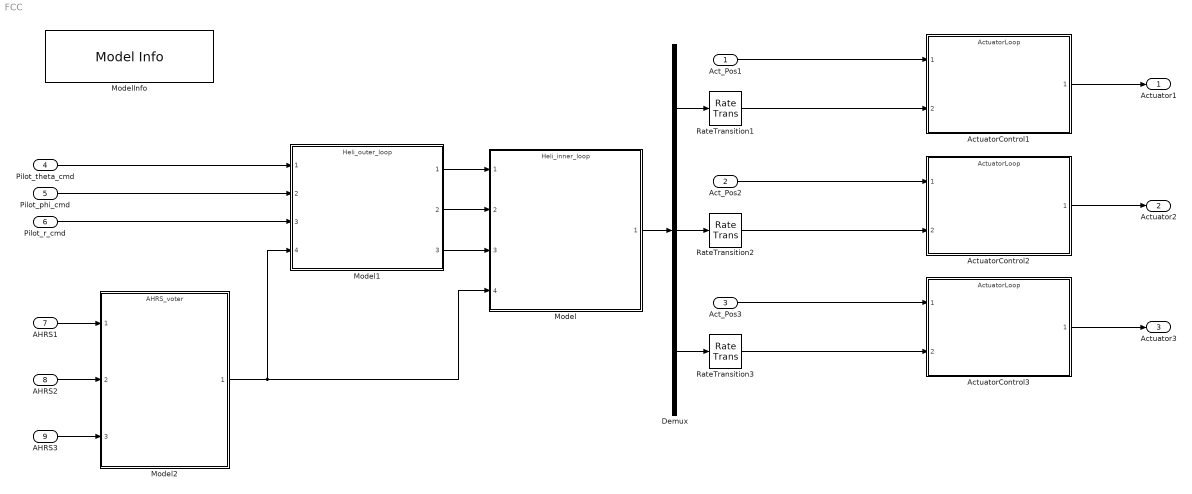
/*
 * File: FCC.c
 *
 * Code generated for Simulink model 'FCC'.
 *
 * Model version                  : 1.71
 * Simulink Coder version         : 9.2 (R2019b) 18-Jul-2019
 * C/C++ source code generated on : Wed May 13 13:32:12 2020
 *
 * Target selection: ert.tlc
 * Embedded hardware selection: Intel->x86-32 (Windows32)
 * Code generation objectives: Unspecified
 * Validation result: Not run
 */

#include "FCC.h"

/* Block signals (default storage) */
B_FCC_T FCC_B;

/* Block states (default storage) */
DW_FCC_T FCC_DW;

/* External inputs (root inport signals with default storage) */
ExtU_FCC_T FCC_U;

/* External outputs (root outports fed by signals with default storage) */
ExtY_FCC_T FCC_Y;

/* Real-time model */
RT_MODEL_FCC_T FCC_M_;
RT_MODEL_FCC_T *const FCC_M = &FCC_M_;
const AHRS_Bus FCC_rtZAHRS_Bus = { 0.0,/* theta */
  0.0,                                 /* phi */
  0.0,                                 /* psi */
  0.0,                                 /* q */
  0.0,                                 /* p */
  0.0,                                 /* r */
  false                                /* valid */
};

/* Model step function for TID0 */
void FCC_step0(void)                   /* Sample time: [0.001s, 0.0s] */
{
  /* Update the flag to indicate when data transfers from
   *  Sample time: [0.001s, 0.0s] to Sample time: [0.01s, 0.0s]  */
  FCC_M->Timing.RateInteraction.b_TID0_1 = (FCC_M->Timing.RateInteraction.TID0_1
    == 0);
  (FCC_M->Timing.RateInteraction.TID0_1)++;
  if ((FCC_M->Timing.RateInteraction.TID0_1) > 9) {
    FCC_M->Timing.RateInteraction.TID0_1 = 0;
  }

  /* RateTransition: '<Root>/RateTransition1' */
  if (FCC_M->Timing.RateInteraction.TID0_1 == 1) {
    FCC_B.RateTransition1 = FCC_DW.RateTransition1_Buffer0;
  }

  /* End of RateTransition: '<Root>/RateTransition1' */

  /* ModelReference: '<Root>/ActuatorControl1' incorporates:
   *  Inport: '<Root>/Act_Pos1'
   *  Outport: '<Root>/Actuator1'
   *
   * Block requirements for '<Root>/ActuatorControl1':
   *  1. HLR_4: Hydraulic Actuator Loop Control (HelicopterSoftwareRequirements#8)
   *
   * Block requirements for '<Root>/Act_Pos1':
   *  1. HLR_2 : Hydraulic Actuator Feedback (HelicopterSoftwareRequirements#6)
   *
   * Block requirements for '<Root>/Actuator1':
   *  1. HLR_3: Hydraulic Actuator Drive (HelicopterSoftwareRequirements#7)
   */
  ActuatorLoop(&FCC_U.Act_Pos1, &FCC_B.RateTransition1, &FCC_Y.Actuator1,
               &(FCC_DW.ActuatorControl1_InstanceData.rtb),
               &(FCC_DW.ActuatorControl1_InstanceData.rtdw), 0.339, 0.00272,
               2.73);

  /* RateTransition: '<Root>/RateTransition2' */
  if (FCC_M->Timing.RateInteraction.TID0_1 == 1) {
    FCC_B.RateTransition2 = FCC_DW.RateTransition2_Buffer0;
  }

  /* End of RateTransition: '<Root>/RateTransition2' */

  /* ModelReference: '<Root>/ActuatorControl2' incorporates:
   *  Inport: '<Root>/Act_Pos2'
   *  Outport: '<Root>/Actuator2'
   *
   * Block requirements for '<Root>/ActuatorControl2':
   *  1. HLR_4: Hydraulic Actuator Loop Control (HelicopterSoftwareRequirements#8)
   *
   * Block requirements for '<Root>/Act_Pos2':
   *  1. HLR_2 : Hydraulic Actuator Feedback (HelicopterSoftwareRequirements#6)
   *
   * Block requirements for '<Root>/Actuator2':
   *  1. HLR_3: Hydraulic Actuator Drive (HelicopterSoftwareRequirements#7)
   */
  ActuatorLoop(&FCC_U.Act_Pos2, &FCC_B.RateTransition2, &FCC_Y.Actuator2,
               &(FCC_DW.ActuatorControl2_InstanceData.rtb),
               &(FCC_DW.ActuatorControl2_InstanceData.rtdw), 0.339, 0.00272,
               2.73);

  /* RateTransition: '<Root>/RateTransition3' */
  if (FCC_M->Timing.RateInteraction.TID0_1 == 1) {
    FCC_B.RateTransition3 = FCC_DW.RateTransition3_Buffer0;
  }

  /* End of RateTransition: '<Root>/RateTransition3' */

  /* ModelReference: '<Root>/ActuatorControl3' incorporates:
   *  Inport: '<Root>/Act_Pos3'
   *  Outport: '<Root>/Actuator3'
   *
   * Block requirements for '<Root>/ActuatorControl3':
   *  1. HLR_4: Hydraulic Actuator Loop Control (HelicopterSoftwareRequirements#8)
   *
   * Block requirements for '<Root>/Act_Pos3':
   *  1. HLR_2 : Hydraulic Actuator Feedback (HelicopterSoftwareRequirements#6)
   *
   * Block requirements for '<Root>/Actuator3':
   *  1. HLR_3: Hydraulic Actuator Drive (HelicopterSoftwareRequirements#7)
   */
  ActuatorLoop(&FCC_U.Act_Pos3, &FCC_B.RateTransition3, &FCC_Y.Actuator3,
               &(FCC_DW.ActuatorControl3_InstanceData.rtb),
               &(FCC_DW.ActuatorControl3_InstanceData.rtdw), 0.339, 0.00272,
               2.73);
}

/* Model step function for TID1 */
void FCC_step1(void)                   /* Sample time: [0.01s, 0.0s] */
{
  /* local block i/o variables */
  real_T rtb_Model2[5];
  real_T rtb_Model1_o1;
  real_T rtb_Model1_o2;
  real_T rtb_Model1_o3;
  real_T rtb_Model[3];

  /* ModelReference: '<Root>/Model2' incorporates:
   *  Inport: '<Root>/AHRS1'
   *  Inport: '<Root>/AHRS2'
   *  Inport: '<Root>/AHRS3'
   *
   * Block requirements for '<Root>/Model2':
   *  1. HLR_9 : AHRS Validity Check (HelicopterSoftwareRequirements#13)
   *  2. HLR_11: AHRS Voting for Triple Sensors (HelicopterSoftwareRequirements#15)
   *  3. HLR_12: AHRS Voting for Dual Sensors (HelicopterSoftwareRequirements#16)
   *  4. HLR_13: AHRS Usage of Single Sensor (HelicopterSoftwareRequirements#17)
   *
   * Block requirements for '<Root>/AHRS1':
   *  1. HLR_10: AHRS Input Signal Processing (HelicopterSoftwareRequirements#14)
   *
   * Block requirements for '<Root>/AHRS2':
   *  1. HLR_10: AHRS Input Signal Processing (HelicopterSoftwareRequirements#14)
   *
   * Block requirements for '<Root>/AHRS3':
   *  1. HLR_10: AHRS Input Signal Processing (HelicopterSoftwareRequirements#14)
   */
  AHRS_voter(&FCC_U.AHRS1, &FCC_U.AHRS2, &FCC_U.AHRS3, &rtb_Model2[0]);

  /* ModelReference: '<Root>/Model1' incorporates:
   *  Inport: '<Root>/Pilot_phi_cmd'
   *  Inport: '<Root>/Pilot_r_cmd'
   *  Inport: '<Root>/Pilot_theta_cmd'
   *
   * Block requirements for '<Root>/Model1':
   *  1. HLR_6: Pitch Outer Loop Control (HelicopterSoftwareRequirements#10)
   *  2. HLR_7: Roll Outer Loop Control (HelicopterSoftwareRequirements#11)
   *  3. HLR_8: Yaw Outer Loop Control (HelicopterSoftwareRequirements#12)
   *
   * Block requirements for '<Root>/Pilot_phi_cmd':
   *  1. HLR_1: Pilot Input Signal Processing (HelicopterSoftwareRequirements#5)
   *
   * Block requirements for '<Root>/Pilot_r_cmd':
   *  1. HLR_1: Pilot Input Signal Processing (HelicopterSoftwareRequirements#5)
   *
   * Block requirements for '<Root>/Pilot_theta_cmd':
   *  1. HLR_1: Pilot Input Signal Processing (HelicopterSoftwareRequirements#5)
   */
  Heli_outer_loop(&FCC_U.Pilot_theta_cmd, &FCC_U.Pilot_phi_cmd,
                  &FCC_U.Pilot_r_cmd, &rtb_Model2[0], &rtb_Model1_o1,
                  &rtb_Model1_o2, &rtb_Model1_o3);

  /* ModelReference: '<Root>/Model'
   *
   * Block requirements for '<Root>/Model':
   *  1. HLR_5: Multi-Variable Inner Loop Control (HelicopterSoftwareRequirements#9)
   */
  Heli_inner_loop(&rtb_Model1_o1, &rtb_Model1_o2, &rtb_Model1_o3, &rtb_Model2[0],
                  &rtb_Model[0]);

  /* RateTransition: '<Root>/RateTransition1' */
  FCC_DW.RateTransition1_Buffer0 = rtb_Model[0];

  /* RateTransition: '<Root>/RateTransition2' */
  FCC_DW.RateTransition2_Buffer0 = rtb_Model[1];

  /* RateTransition: '<Root>/RateTransition3' */
  FCC_DW.RateTransition3_Buffer0 = rtb_Model[2];
}
